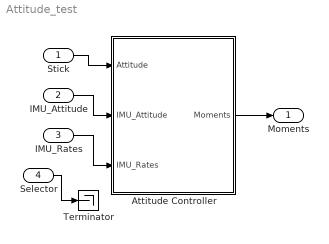
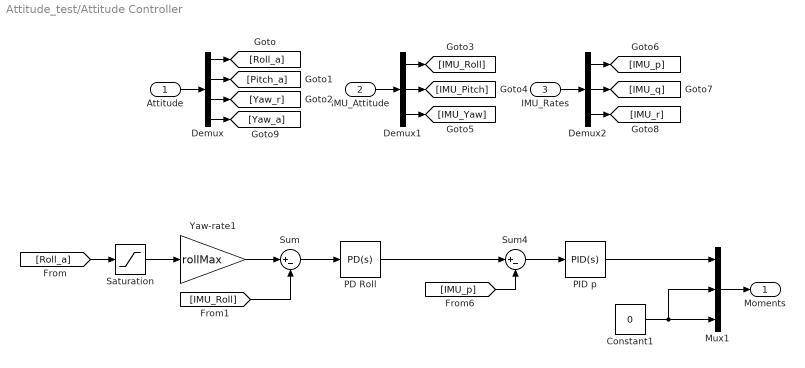
/*
 * Attitude_test.cpp
 *
 * Academic License - for use in teaching, academic research, and meeting
 * course requirements at degree granting institutions only.  Not for
 * government, commercial, or other organizational use.
 *
 * Code generation for model "Attitude_test".
 *
 * Model version              : 1.98
 * Simulink Coder version : 8.10 (R2016a) 10-Feb-2016
 * C++ source code generated on : Sat Sep 03 15:04:34 2016
 *
 * Target selection: grt.tlc
 * Note: GRT includes extra infrastructure and instrumentation for prototyping
 * Embedded hardware selection: ARM Compatible->ARM Cortex
 * Code generation objective: Execution efficiency
 * Validation result: Not run
 */

#include "Attitude_test.h"
#include "Attitude_test_private.h"

/*
 * This function updates continuous states using the ODE2 fixed-step
 * solver algorithm
 */
void Attitude_testModelClass::rt_ertODEUpdateContinuousStates(RTWSolverInfo *si )
{
  time_T tnew = rtsiGetSolverStopTime(si);
  time_T h = rtsiGetStepSize(si);
  real_T *x = rtsiGetContStates(si);
  ODE2_IntgData *id = (ODE2_IntgData *)rtsiGetSolverData(si);
  real_T *y = id->y;
  real_T *f0 = id->f[0];
  real_T *f1 = id->f[1];
  real_T temp;
  int_T i;
  int_T nXc = 3;
  rtsiSetSimTimeStep(si,MINOR_TIME_STEP);

  /* Save the state values at time t in y, we'll use x as ynew. */
  (void) memcpy(y, x,
                (uint_T)nXc*sizeof(real_T));

  /* Assumes that rtsiSetT and ModelOutputs are up-to-date */
  /* f0 = f(t,y) */
  rtsiSetdX(si, f0);
  Attitude_test_derivatives();

  /* f1 = f(t + h, y + h*f0) */
  for (i = 0; i < nXc; i++) {
    x[i] = y[i] + (h*f0[i]);
  }

  rtsiSetT(si, tnew);
  rtsiSetdX(si, f1);
  this->step();
  Attitude_test_derivatives();

  /* tnew = t + h
     ynew = y + (h/2)*(f0 + f1) */
  temp = 0.5*h;
  for (i = 0; i < nXc; i++) {
    x[i] = y[i] + temp*(f0[i] + f1[i]);
  }

  rtsiSetSimTimeStep(si,MAJOR_TIME_STEP);
}

/* Model step function */
void Attitude_testModelClass::step()
{
  real_T rtb_Sum4;
  real_T rtb_Saturate;
  real_T rtb_Sum_o;
  if (rtmIsMajorTimeStep((&Attitude_test_M))) {
    /* set solver stop time */
    if (!((&Attitude_test_M)->Timing.clockTick0+1)) {
      rtsiSetSolverStopTime(&(&Attitude_test_M)->solverInfo, (((&Attitude_test_M)
        ->Timing.clockTickH0 + 1) * (&Attitude_test_M)->Timing.stepSize0 *
        4294967296.0));
    } else {
      rtsiSetSolverStopTime(&(&Attitude_test_M)->solverInfo, (((&Attitude_test_M)
        ->Timing.clockTick0 + 1) * (&Attitude_test_M)->Timing.stepSize0 +
        (&Attitude_test_M)->Timing.clockTickH0 * (&Attitude_test_M)
        ->Timing.stepSize0 * 4294967296.0));
    }
  }                                    /* end MajorTimeStep */

  /* Update absolute time of base rate at minor time step */
  if (rtmIsMinorTimeStep((&Attitude_test_M))) {
    (&Attitude_test_M)->Timing.t[0] = rtsiGetT(&(&Attitude_test_M)->solverInfo);
  }

  /* Saturate: '<S1>/Saturation' incorporates:
   *  Inport: '<Root>/Stick'
   */
  if (Attitude_test_U.Stick[0] > Attitude_test_P.Saturation_UpperSat) {
    rtb_Sum4 = Attitude_test_P.Saturation_UpperSat;
  } else if (Attitude_test_U.Stick[0] < Attitude_test_P.Saturation_LowerSat) {
    rtb_Sum4 = Attitude_test_P.Saturation_LowerSat;
  } else {
    rtb_Sum4 = Attitude_test_U.Stick[0];
  }

  /* Sum: '<S1>/Sum' incorporates:
   *  Gain: '<S1>/Yaw-rate1'
   *  Inport: '<Root>/IMU_Attitude'
   *  Saturate: '<S1>/Saturation'
   */
  rtb_Sum4 = Attitude_test_P.rollMax * rtb_Sum4 - Attitude_test_U.IMU_Attitude[0];

  /* Gain: '<S2>/Filter Coefficient' incorporates:
   *  Gain: '<S2>/Derivative Gain'
   *  Integrator: '<S2>/Filter'
   *  Sum: '<S2>/SumD'
   */
  Attitude_test_B.FilterCoefficient = (Attitude_test_P.KRD * rtb_Sum4 -
    Attitude_test_X.Filter_CSTATE) * Attitude_test_P.N;

  /* Sum: '<S1>/Sum4' incorporates:
   *  Gain: '<S2>/Proportional Gain'
   *  Inport: '<Root>/IMU_Rates'
   *  Sum: '<S2>/Sum'
   */
  rtb_Sum4 = (Attitude_test_P.KRP * rtb_Sum4 + Attitude_test_B.FilterCoefficient)
    - Attitude_test_U.IMU_Rates[0];

  /* Gain: '<S3>/Filter Coefficient' incorporates:
   *  Gain: '<S3>/Derivative Gain'
   *  Integrator: '<S3>/Filter'
   *  Sum: '<S3>/SumD'
   */
  Attitude_test_B.FilterCoefficient_o = (Attitude_test_P.Kdp * rtb_Sum4 -
    Attitude_test_X.Filter_CSTATE_k) * Attitude_test_P.N;

  /* Sum: '<S3>/Sum' incorporates:
   *  Gain: '<S3>/Proportional Gain'
   *  Integrator: '<S3>/Integrator'
   */
  rtb_Sum_o = (Attitude_test_P.Kpp * rtb_Sum4 +
               Attitude_test_X.Integrator_CSTATE) +
    Attitude_test_B.FilterCoefficient_o;

  /* Saturate: '<S3>/Saturate' */
  if (rtb_Sum_o > Attitude_test_P.satp) {
    rtb_Saturate = Attitude_test_P.satp;
  } else if (rtb_Sum_o < -Attitude_test_P.satp) {
    rtb_Saturate = -Attitude_test_P.satp;
  } else {
    rtb_Saturate = rtb_Sum_o;
  }

  /* End of Saturate: '<S3>/Saturate' */

  /* Outport: '<Root>/Moments' incorporates:
   *  Constant: '<S1>/Constant1'
   */
  Attitude_test_Y.Moments[0] = rtb_Saturate;
  Attitude_test_Y.Moments[1] = Attitude_test_P.Constant1_Value;
  Attitude_test_Y.Moments[2] = Attitude_test_P.Constant1_Value;

  /* Sum: '<S3>/SumI1' incorporates:
   *  Gain: '<S3>/Integral Gain'
   *  Gain: '<S3>/Kb'
   *  Sum: '<S3>/SumI2'
   */
  Attitude_test_B.SumI1 = (rtb_Saturate - rtb_Sum_o) * Attitude_test_P.Kbp +
    Attitude_test_P.Kip * rtb_Sum4;
  if (rtmIsMajorTimeStep((&Attitude_test_M))) {
    rt_ertODEUpdateContinuousStates(&(&Attitude_test_M)->solverInfo);

    /* Update absolute time for base rate */
    /* The "clockTick0" counts the number of times the code of this task has
     * been executed. The absolute time is the multiplication of "clockTick0"
     * and "Timing.stepSize0". Size of "clockTick0" ensures timer will not
     * overflow during the application lifespan selected.
     * Timer of this task consists of two 32 bit unsigned integers.
     * The two integers represent the low bits Timing.clockTick0 and the high bits
     * Timing.clockTickH0. When the low bit overflows to 0, the high bits increment.
     */
    if (!(++(&Attitude_test_M)->Timing.clockTick0)) {
      ++(&Attitude_test_M)->Timing.clockTickH0;
    }

    (&Attitude_test_M)->Timing.t[0] = rtsiGetSolverStopTime(&(&Attitude_test_M
      )->solverInfo);

    {
      /* Update absolute timer for sample time: [0.01s, 0.0s] */
      /* The "clockTick1" counts the number of times the code of this task has
       * been executed. The resolution of this integer timer is 0.01, which is the step size
       * of the task. Size of "clockTick1" ensures timer will not overflow during the
       * application lifespan selected.
       * Timer of this task consists of two 32 bit unsigned integers.
       * The two integers represent the low bits Timing.clockTick1 and the high bits
       * Timing.clockTickH1. When the low bit overflows to 0, the high bits increment.
       */
      (&Attitude_test_M)->Timing.clockTick1++;
      if (!(&Attitude_test_M)->Timing.clockTick1) {
        (&Attitude_test_M)->Timing.clockTickH1++;
      }
    }
  }                                    /* end MajorTimeStep */
}
